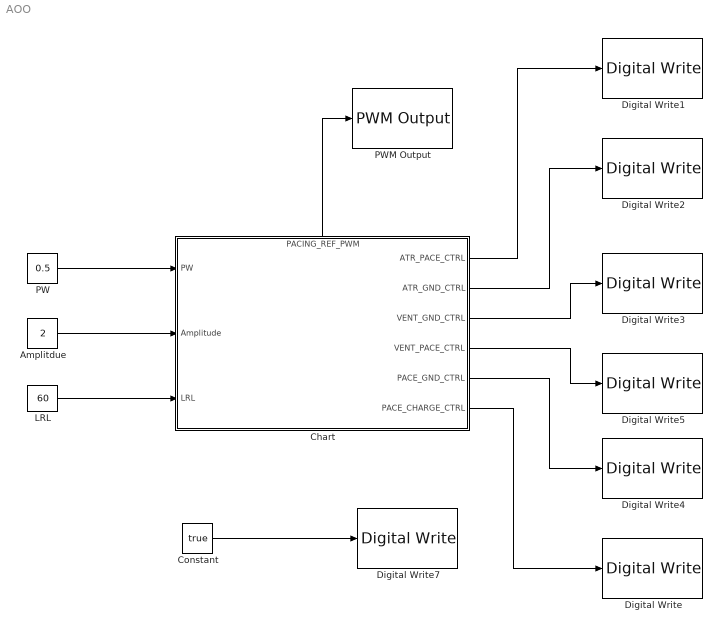
== stateflow chart AOO/Chart ==
  state AOO_Charging_C22
    entry:
    VENT_PACE_CTRL = false;
    ATR_PACE_CTRL = false;
    PACE_CHARGE_CTRL = true;
    PACING_REF_PWM = Amplitude * 20;
    PACE_GND_CTRL= true;
    VENT_GND_CTRL = false;
    ATR_GND_CTRL = true;
  state AOO_Pacing
    entry:
    PACE_CHARGE_CTRL = false;
    PACE_GND_CTRL = true;
    VENT_PACE_CTRL = false;
    VENT_GND_CTRL = false;
    ATR_GND_CTRL = false;
    ATR_PACE_CTRL = true;
  (default) -> AOO_Charging_C22
  AOO_Charging_C22 -> AOO_Pacing : after(((60000/LRL) - PW), msec)
  AOO_Pacing -> AOO_Charging_C22 : after(PW, msec)
  data: ATR_GND_CTRL output boolean; ATR_PACE_CTRL output boolean; PACE_CHARGE_CTRL output boolean; VENT_GND_CTRL output boolean; VENT_PACE_CTRL output boolean; PACE_GND_CTRL output boolean; PW input double; Amplitude input double; LRL input double; PACING_REF_PWM output double

/*
 * AOO.c
 *
 * Academic License - for use in teaching, academic research, and meeting
 * course requirements at degree granting institutions only.  Not for
 * government, commercial, or other organizational use.
 *
 * Code generation for model "AOO".
 *
 * Model version              : 1.9
 * Simulink Coder version : 9.7 (R2022a) 13-Nov-2021
 * C source code generated on : Sat Oct 22 23:08:00 2022
 *
 * Target selection: ert.tlc
 * Note: GRT includes extra infrastructure and instrumentation for prototyping
 * Embedded hardware selection: ARM Compatible->ARM Cortex
 * Code generation objectives: Unspecified
 * Validation result: Not run
 */

#include "AOO.h"
#include "rtwtypes.h"
#include "AOO_types.h"
#include <math.h>

/* Named constants for Chart: '<Root>/Chart' */
#define AOO_IN_AOO_Charging_C22        ((uint8_T)1U)
#define AOO_IN_AOO_Pacing              ((uint8_T)2U)
#define AOO_IN_NO_ACTIVE_CHILD         ((uint8_T)0U)

/* Block signals (default storage) */
B_AOO_T AOO_B;

/* Block states (default storage) */
DW_AOO_T AOO_DW;

/* Real-time model */
static RT_MODEL_AOO_T AOO_M_;
RT_MODEL_AOO_T *const AOO_M = &AOO_M_;

/* Model step function */
void AOO_step(void)
{
  boolean_T rtb_ATR_GND_CTRL;
  boolean_T rtb_ATR_PACE_CTRL;
  boolean_T rtb_PACE_CHARGE_CTRL;

  /* Chart: '<Root>/Chart' incorporates:
   *  Constant: '<Root>/Amplitdue'
   *  Constant: '<Root>/LRL'
   *  Constant: '<Root>/PW'
   */
  if (AOO_DW.temporalCounter_i1 < MAX_uint32_T) {
    AOO_DW.temporalCounter_i1++;
  }

  if (AOO_DW.is_active_c3_AOO == 0U) {
    AOO_DW.is_active_c3_AOO = 1U;
    AOO_DW.is_c3_AOO = AOO_IN_AOO_Charging_C22;
    AOO_DW.temporalCounter_i1 = 0U;
    rtb_ATR_PACE_CTRL = false;
    rtb_PACE_CHARGE_CTRL = true;
    AOO_B.PACING_REF_PWM = AOO_P.Amplitdue_Value * 20.0;
    rtb_ATR_GND_CTRL = true;
  } else if (AOO_DW.is_c3_AOO == AOO_IN_AOO_Charging_C22) {
    rtb_ATR_PACE_CTRL = false;
    rtb_PACE_CHARGE_CTRL = true;
    rtb_ATR_GND_CTRL = true;
    if (AOO_DW.temporalCounter_i1 >= (uint32_T)ceil(60000.0 / AOO_P.LRL_Value -
         AOO_P.PW_Value)) {
      AOO_DW.is_c3_AOO = AOO_IN_AOO_Pacing;
      AOO_DW.temporalCounter_i1 = 0U;
      rtb_PACE_CHARGE_CTRL = false;
      rtb_ATR_GND_CTRL = false;
      rtb_ATR_PACE_CTRL = true;
    }
  } else {
    /* case IN_AOO_Pacing: */
    rtb_PACE_CHARGE_CTRL = false;
    rtb_ATR_GND_CTRL = false;
    rtb_ATR_PACE_CTRL = true;
    if (AOO_DW.temporalCounter_i1 >= (uint32_T)ceil(AOO_P.PW_Value)) {
      AOO_DW.is_c3_AOO = AOO_IN_AOO_Charging_C22;
      AOO_DW.temporalCounter_i1 = 0U;
      rtb_ATR_PACE_CTRL = false;
      rtb_PACE_CHARGE_CTRL = true;
      AOO_B.PACING_REF_PWM = AOO_P.Amplitdue_Value * 20.0;
      rtb_ATR_GND_CTRL = true;
    }
  }

  /* End of Chart: '<Root>/Chart' */

  /* MATLABSystem: '<Root>/Digital Write' */
  MW_digitalIO_write(AOO_DW.obj_l.MW_DIGITALIO_HANDLE, rtb_PACE_CHARGE_CTRL);

  /* MATLABSystem: '<Root>/Digital Write1' */
  MW_digitalIO_write(AOO_DW.obj_ib.MW_DIGITALIO_HANDLE, rtb_ATR_PACE_CTRL);

  /* MATLABSystem: '<Root>/Digital Write2' */
  MW_digitalIO_write(AOO_DW.obj_i.MW_DIGITALIO_HANDLE, rtb_ATR_GND_CTRL);

  /* MATLABSystem: '<Root>/Digital Write3' */
  MW_digitalIO_write(AOO_DW.obj_n.MW_DIGITALIO_HANDLE, false);

  /* MATLABSystem: '<Root>/Digital Write4' */
  MW_digitalIO_write(AOO_DW.obj_j.MW_DIGITALIO_HANDLE, true);

  /* MATLABSystem: '<Root>/Digital Write5' */
  MW_digitalIO_write(AOO_DW.obj_m.MW_DIGITALIO_HANDLE, false);

  /* MATLABSystem: '<Root>/PWM Output' */
  MW_PWM_SetDutyCycle(AOO_DW.obj_k.MW_PWM_HANDLE, AOO_B.PACING_REF_PWM);

  /* MATLABSystem: '<Root>/Digital Write7' incorporates:
   *  Constant: '<Root>/Constant'
   */
  MW_digitalIO_write(AOO_DW.obj.MW_DIGITALIO_HANDLE, AOO_P.Constant_Value);
}
